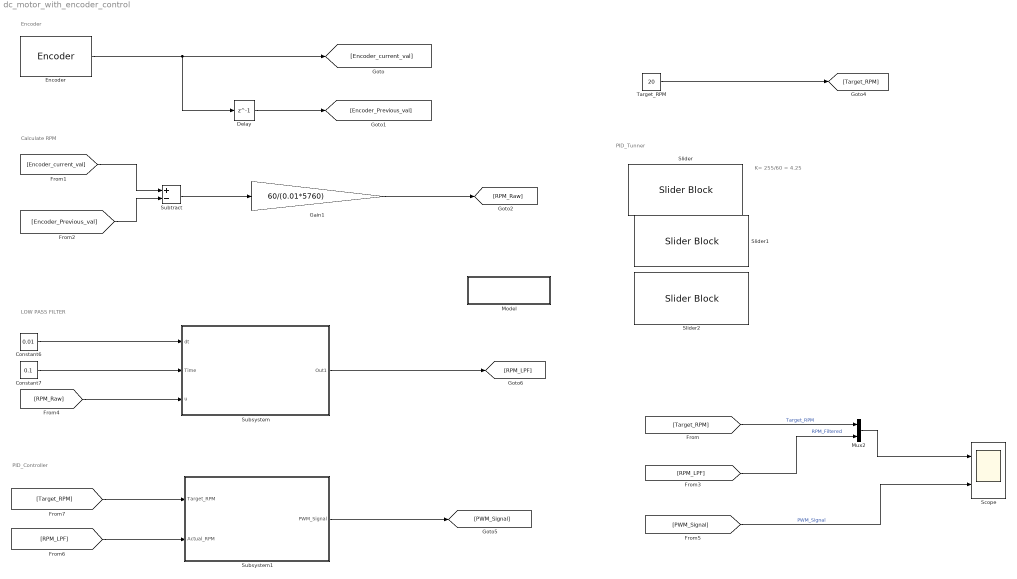
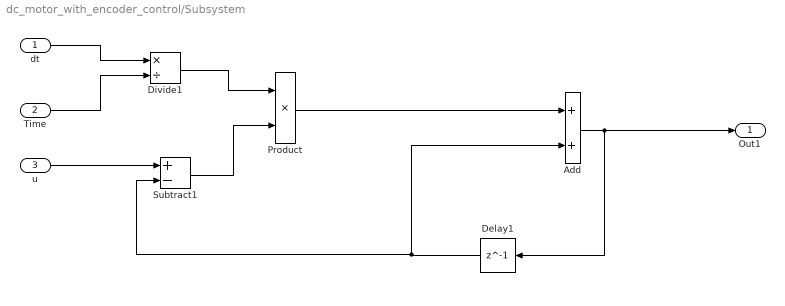
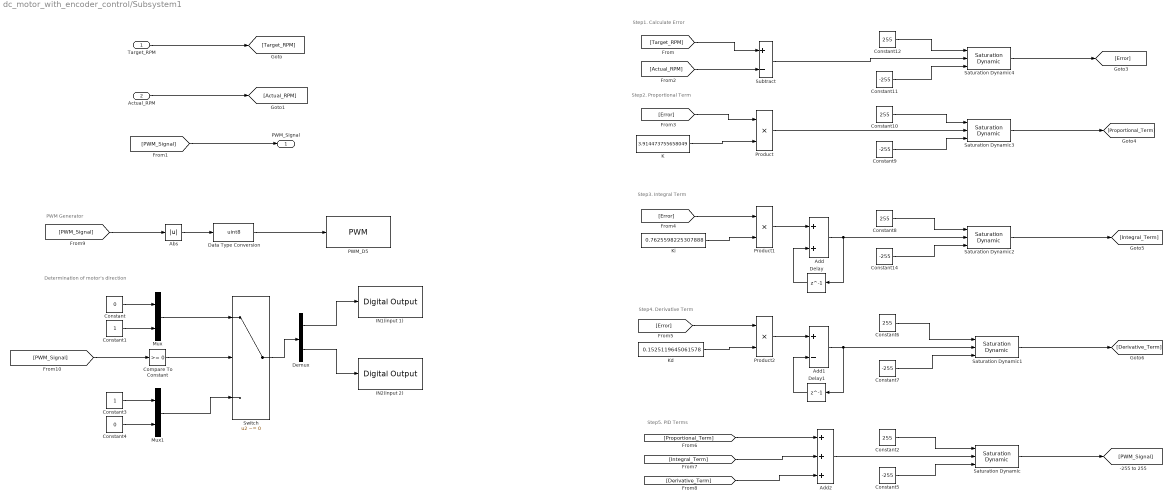
/*
 * Academic License - for use in teaching, academic research, and meeting
 * course requirements at degree granting institutions only.  Not for
 * government, commercial, or other organizational use.
 *
 * File: dc_motor_with_encoder_control.c
 *
 * Code generated for Simulink model 'dc_motor_with_encoder_control'.
 *
 * Model version                  : 1.23
 * Simulink Coder version         : 24.2 (R2024b) 21-Jun-2024
 * C/C++ source code generated on : Tue Sep 16 08:33:25 2025
 *
 * Target selection: ert.tlc
 * Embedded hardware selection: Atmel->AVR
 * Code generation objectives: Unspecified
 * Validation result: Not run
 */

#include "dc_motor_with_encoder_control.h"
#include <math.h>
#include "rt_nonfinite.h"
#include "rtwtypes.h"
#include "dc_motor_with_encoder_control_private.h"

/* Block signals (default storage) */
B_dc_motor_with_encoder_contr_T dc_motor_with_encoder_control_B;

/* Block states (default storage) */
DW_dc_motor_with_encoder_cont_T dc_motor_with_encoder_contro_DW;

/* Real-time model */
static RT_MODEL_dc_motor_with_encode_T dc_motor_with_encoder_contro_M_;
RT_MODEL_dc_motor_with_encode_T *const dc_motor_with_encoder_contro_M =
  &dc_motor_with_encoder_contro_M_;

/* Model step function */
void dc_motor_with_encoder_control_step(void)
{
  real_T rtb_Product_b;
  real_T rtb_Subtract_g;
  real_T tmp;
  int32_T rtb_Encoder_0;
  uint8_T rtb_Switch_m_idx_0;
  uint8_T rtb_Switch_m_idx_1;

  /* Constant: '<Root>/Target_RPM' */
  dc_motor_with_encoder_control_B.Target_RPM =
    dc_motor_with_encoder_control_P.Target_RPM_Value;

  /* MATLABSystem: '<Root>/Encoder' */
  if (dc_motor_with_encoder_contro_DW.obj.TunablePropsChanged) {
    dc_motor_with_encoder_contro_DW.obj.TunablePropsChanged = false;
  }

  MW_EncoderRead(dc_motor_with_encoder_contro_DW.obj.Index, &rtb_Encoder_0);

  /* Sum: '<S1>/Add' incorporates:
   *  Constant: '<Root>/Constant6'
   *  Constant: '<Root>/Constant7'
   *  Delay: '<Root>/Delay'
   *  Delay: '<S1>/Delay1'
   *  Gain: '<Root>/Gain1'
   *  MATLABSystem: '<Root>/Encoder'
   *  Product: '<S1>/Divide1'
   *  Product: '<S1>/Product'
   *  Sum: '<Root>/Subtract'
   *  Sum: '<S1>/Subtract1'
   */
  dc_motor_with_encoder_control_B.Add += (((real_T)rtb_Encoder_0 - (real_T)
    dc_motor_with_encoder_contro_DW.Delay_DSTATE) *
    dc_motor_with_encoder_control_P.Gain1_Gain -
    dc_motor_with_encoder_control_B.Add) *
    (dc_motor_with_encoder_control_P.Constant6_Value /
     dc_motor_with_encoder_control_P.Constant7_Value_b);

  /* SignalConversion generated from: '<Root>/Mux2' */
  dc_motor_with_encoder_control_B.TmpSignalConversionAtTAQSigLogg[0] =
    dc_motor_with_encoder_control_B.Target_RPM;
  dc_motor_with_encoder_control_B.TmpSignalConversionAtTAQSigLogg[1] =
    dc_motor_with_encoder_control_B.Add;

  /* Sum: '<S2>/Subtract' */
  rtb_Subtract_g = dc_motor_with_encoder_control_B.Target_RPM -
    dc_motor_with_encoder_control_B.Add;

  /* Switch: '<S8>/Switch2' incorporates:
   *  Constant: '<S2>/Constant11'
   *  Constant: '<S2>/Constant12'
   *  RelationalOperator: '<S8>/LowerRelop1'
   *  RelationalOperator: '<S8>/UpperRelop'
   *  Switch: '<S8>/Switch'
   */
  if (rtb_Subtract_g > dc_motor_with_encoder_control_P.Constant12_Value) {
    rtb_Subtract_g = dc_motor_with_encoder_control_P.Constant12_Value;
  } else if (rtb_Subtract_g < dc_motor_with_encoder_control_P.Constant11_Value)
  {
    /* Switch: '<S8>/Switch' incorporates:
     *  Constant: '<S2>/Constant11'
     */
    rtb_Subtract_g = dc_motor_with_encoder_control_P.Constant11_Value;
  }

  /* End of Switch: '<S8>/Switch2' */

  /* Product: '<S2>/Product' incorporates:
   *  Constant: '<S2>/K'
   */
  rtb_Product_b = rtb_Subtract_g * dc_motor_with_encoder_control_P.K_Value;

  /* Sum: '<S2>/Add' incorporates:
   *  Constant: '<S2>/Ki'
   *  Delay: '<S2>/Delay'
   *  Product: '<S2>/Product1'
   */
  tmp = floor(rtb_Subtract_g * dc_motor_with_encoder_control_P.Ki_Value +
              (real_T)dc_motor_with_encoder_contro_DW.Delay_DSTATE_f);
  if (rtIsNaN(tmp) || rtIsInf(tmp)) {
    tmp = 0.0;
  } else {
    tmp = fmod(tmp, 4.294967296E+9);
  }

  dc_motor_with_encoder_contro_DW.Delay_DSTATE_f = tmp < 0.0 ? -(int32_T)
    (uint32_T)-tmp : (int32_T)(uint32_T)tmp;

  /* End of Sum: '<S2>/Add' */

  /* Product: '<S2>/Product2' incorporates:
   *  Constant: '<S2>/Kd'
   */
  tmp = floor(rtb_Subtract_g * dc_motor_with_encoder_control_P.Kd_Value);
  if (rtIsNaN(tmp) || rtIsInf(tmp)) {
    tmp = 0.0;
  } else {
    tmp = fmod(tmp, 4.294967296E+9);
  }

  /* Sum: '<S2>/Add1' incorporates:
   *  Delay: '<S2>/Delay1'
   *  Product: '<S2>/Product2'
   */
  dc_motor_with_encoder_contro_DW.Delay1_DSTATE_n = (real_T)(tmp < 0.0 ?
    -(int32_T)(uint32_T)-tmp : (int32_T)(uint32_T)tmp) -
    dc_motor_with_encoder_contro_DW.Delay1_DSTATE_n;

  /* Switch: '<S7>/Switch2' incorporates:
   *  Constant: '<S2>/Constant10'
   *  Constant: '<S2>/Constant9'
   *  RelationalOperator: '<S7>/LowerRelop1'
   *  RelationalOperator: '<S7>/UpperRelop'
   *  Switch: '<S7>/Switch'
   */
  if (rtb_Product_b > dc_motor_with_encoder_control_P.Constant10_Value) {
    rtb_Product_b = dc_motor_with_encoder_control_P.Constant10_Value;
  } else if (rtb_Product_b < dc_motor_with_encoder_control_P.Constant9_Value) {
    /* Switch: '<S7>/Switch' incorporates:
     *  Constant: '<S2>/Constant9'
     */
    rtb_Product_b = dc_motor_with_encoder_control_P.Constant9_Value;
  }

  /* Switch: '<S6>/Switch2' incorporates:
   *  Constant: '<S2>/Constant14'
   *  Constant: '<S2>/Constant8'
   *  Delay: '<S2>/Delay'
   *  RelationalOperator: '<S6>/LowerRelop1'
   *  RelationalOperator: '<S6>/UpperRelop'
   *  Switch: '<S6>/Switch'
   */
  if (dc_motor_with_encoder_contro_DW.Delay_DSTATE_f >
      dc_motor_with_encoder_control_P.Constant8_Value) {
    tmp = dc_motor_with_encoder_control_P.Constant8_Value;
  } else if (dc_motor_with_encoder_contro_DW.Delay_DSTATE_f <
             dc_motor_with_encoder_control_P.Constant14_Value) {
    /* Switch: '<S6>/Switch' incorporates:
     *  Constant: '<S2>/Constant14'
     */
    tmp = dc_motor_with_encoder_control_P.Constant14_Value;
  } else {
    tmp = dc_motor_with_encoder_contro_DW.Delay_DSTATE_f;
  }

  /* Switch: '<S5>/Switch2' incorporates:
   *  Constant: '<S2>/Constant6'
   *  Constant: '<S2>/Constant7'
   *  Delay: '<S2>/Delay1'
   *  RelationalOperator: '<S5>/LowerRelop1'
   *  RelationalOperator: '<S5>/UpperRelop'
   *  Switch: '<S5>/Switch'
   */
  if (dc_motor_with_encoder_contro_DW.Delay1_DSTATE_n >
      dc_motor_with_encoder_control_P.Constant6_Value_d) {
    rtb_Subtract_g = dc_motor_with_encoder_control_P.Constant6_Value_d;
  } else if (dc_motor_with_encoder_contro_DW.Delay1_DSTATE_n <
             dc_motor_with_encoder_control_P.Constant7_Value) {
    /* Switch: '<S5>/Switch' incorporates:
     *  Constant: '<S2>/Constant7'
     */
    rtb_Subtract_g = dc_motor_with_encoder_control_P.Constant7_Value;
  } else {
    rtb_Subtract_g = dc_motor_with_encoder_contro_DW.Delay1_DSTATE_n;
  }

  /* Sum: '<S2>/Add2' incorporates:
   *  Switch: '<S5>/Switch2'
   *  Switch: '<S6>/Switch2'
   *  Switch: '<S7>/Switch2'
   */
  dc_motor_with_encoder_control_B.Switch2 = (rtb_Product_b + tmp) +
    rtb_Subtract_g;

  /* Switch: '<S4>/Switch2' incorporates:
   *  Constant: '<S2>/Constant2'
   *  Constant: '<S2>/Constant5'
   *  RelationalOperator: '<S4>/LowerRelop1'
   *  RelationalOperator: '<S4>/UpperRelop'
   *  Switch: '<S4>/Switch'
   */
  if (dc_motor_with_encoder_control_B.Switch2 >
      dc_motor_with_encoder_control_P.Constant2_Value) {
    /* Sum: '<S2>/Add2' incorporates:
     *  Switch: '<S4>/Switch2'
     */
    dc_motor_with_encoder_control_B.Switch2 =
      dc_motor_with_encoder_control_P.Constant2_Value;
  } else if (dc_motor_with_encoder_control_B.Switch2 <
             dc_motor_with_encoder_control_P.Constant5_Value) {
    /* Sum: '<S2>/Add2' incorporates:
     *  Constant: '<S2>/Constant5'
     *  Switch: '<S4>/Switch'
     *  Switch: '<S4>/Switch2'
     */
    dc_motor_with_encoder_control_B.Switch2 =
      dc_motor_with_encoder_control_P.Constant5_Value;
  }

  /* End of Switch: '<S4>/Switch2' */
  /* Switch: '<S2>/Switch' incorporates:
   *  Constant: '<S2>/Constant'
   *  Constant: '<S2>/Constant1'
   *  Constant: '<S2>/Constant3'
   *  Constant: '<S2>/Constant4'
   *  Constant: '<S3>/Constant'
   *  RelationalOperator: '<S3>/Compare'
   */
  if (dc_motor_with_encoder_control_B.Switch2 >=
      dc_motor_with_encoder_control_P.CompareToConstant_const) {
    rtb_Switch_m_idx_0 = dc_motor_with_encoder_control_P.Constant_Value;
    rtb_Switch_m_idx_1 = dc_motor_with_encoder_control_P.Constant1_Value;
  } else {
    rtb_Switch_m_idx_0 = dc_motor_with_encoder_control_P.Constant3_Value;
    rtb_Switch_m_idx_1 = dc_motor_with_encoder_control_P.Constant4_Value;
  }

  /* End of Switch: '<S2>/Switch' */

  /* MATLABSystem: '<S2>/IN1(input 1)' */
  writeDigitalPin(9, rtb_Switch_m_idx_0);

  /* MATLABSystem: '<S2>/IN2(input 2)' */
  writeDigitalPin(4, rtb_Switch_m_idx_1);

  /* MATLABSystem: '<S2>/PWM_D5' */
  dc_motor_with_encoder_contro_DW.obj_f.PWMDriverObj.MW_PWM_HANDLE =
    MW_PWM_GetHandle(5UL);

  /* DataTypeConversion: '<S2>/Data Type Conversion' incorporates:
   *  Abs: '<S2>/Abs'
   */
  tmp = floor(fabs(dc_motor_with_encoder_control_B.Switch2));
  if (rtIsNaN(tmp) || rtIsInf(tmp)) {
    tmp = 0.0;
  } else {
    tmp = fmod(tmp, 256.0);
  }

  /* MATLABSystem: '<S2>/PWM_D5' incorporates:
   *  DataTypeConversion: '<S2>/Data Type Conversion'
   */
  MW_PWM_SetDutyCycle
    (dc_motor_with_encoder_contro_DW.obj_f.PWMDriverObj.MW_PWM_HANDLE, (real_T)
     (uint8_T)tmp);

  /* Update for Delay: '<Root>/Delay' incorporates:
   *  MATLABSystem: '<Root>/Encoder'
   */
  dc_motor_with_encoder_contro_DW.Delay_DSTATE = rtb_Encoder_0;

  /* Update absolute time for base rate */
  /* The "clockTick0" counts the number of times the code of this task has
   * been executed. The absolute time is the multiplication of "clockTick0"
   * and "Timing.stepSize0". Size of "clockTick0" ensures timer will not
   * overflow during the application lifespan selected.
   */
  dc_motor_with_encoder_contro_M->Timing.taskTime0 =
    ((time_T)(++dc_motor_with_encoder_contro_M->Timing.clockTick0)) *
    dc_motor_with_encoder_contro_M->Timing.stepSize0;
}
